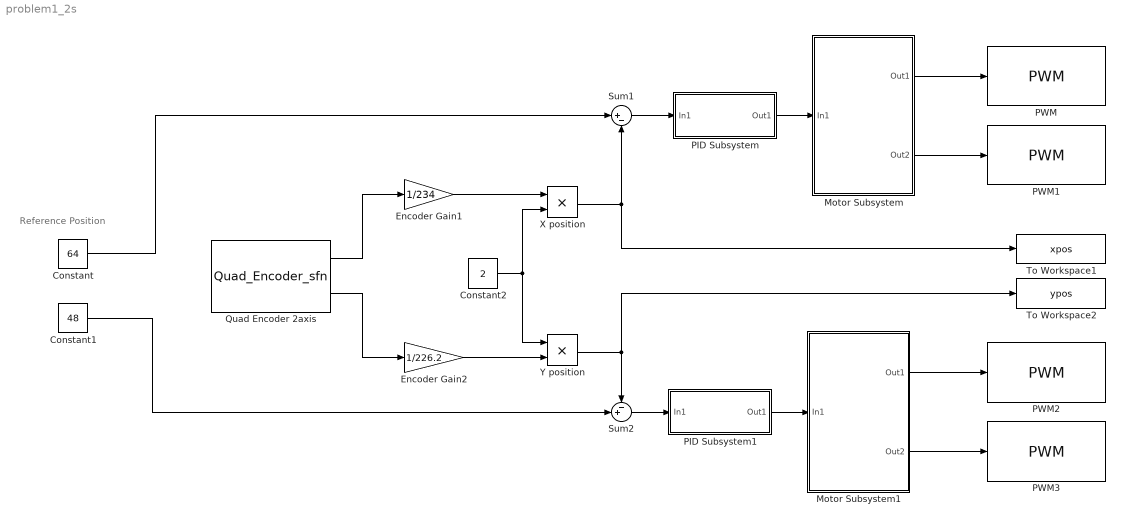
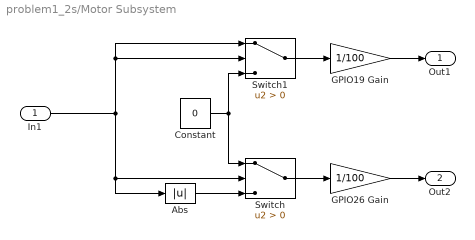
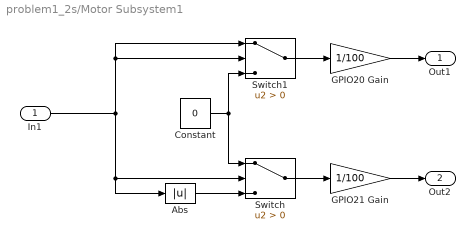
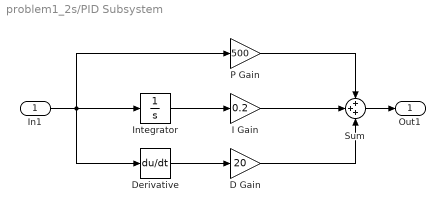
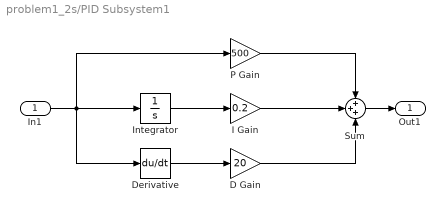
/*
 * problem1_2s.c
 *
 * Academic License - for use in teaching, academic research, and meeting
 * course requirements at degree granting institutions only.  Not for
 * government, commercial, or other organizational use.
 *
 * Code generation for model "problem1_2s".
 *
 * Model version              : 1.46
 * Simulink Coder version : 9.5 (R2021a) 14-Nov-2020
 * C source code generated on : Thu Dec 14 22:14:33 2023
 *
 * Target selection: ert.tlc
 * Note: GRT includes extra infrastructure and instrumentation for prototyping
 * Embedded hardware selection: ARM Compatible->ARM Cortex
 * Code generation objectives: Unspecified
 * Validation result: Not run
 */

#include "problem1_2s.h"
#include "problem1_2s_private.h"

/* Block signals (default storage) */
B_problem1_2s_T problem1_2s_B;

/* Continuous states */
X_problem1_2s_T problem1_2s_X;

/* Block states (default storage) */
DW_problem1_2s_T problem1_2s_DW;

/* Real-time model */
static RT_MODEL_problem1_2s_T problem1_2s_M_;
RT_MODEL_problem1_2s_T *const problem1_2s_M = &problem1_2s_M_;

/*
 * This function updates continuous states using the ODE3 fixed-step
 * solver algorithm
 */
static void rt_ertODEUpdateContinuousStates(RTWSolverInfo *si )
{
  /* Solver Matrices */
  static const real_T rt_ODE3_A[3] = {
    1.0/2.0, 3.0/4.0, 1.0
  };

  static const real_T rt_ODE3_B[3][3] = {
    { 1.0/2.0, 0.0, 0.0 },

    { 0.0, 3.0/4.0, 0.0 },

    { 2.0/9.0, 1.0/3.0, 4.0/9.0 }
  };

  time_T t = rtsiGetT(si);
  time_T tnew = rtsiGetSolverStopTime(si);
  time_T h = rtsiGetStepSize(si);
  real_T *x = rtsiGetContStates(si);
  ODE3_IntgData *id = (ODE3_IntgData *)rtsiGetSolverData(si);
  real_T *y = id->y;
  real_T *f0 = id->f[0];
  real_T *f1 = id->f[1];
  real_T *f2 = id->f[2];
  real_T hB[3];
  int_T i;
  int_T nXc = 2;
  rtsiSetSimTimeStep(si,MINOR_TIME_STEP);

  /* Save the state values at time t in y, we'll use x as ynew. */
  (void) memcpy(y, x,
                (uint_T)nXc*sizeof(real_T));

  /* Assumes that rtsiSetT and ModelOutputs are up-to-date */
  /* f0 = f(t,y) */
  rtsiSetdX(si, f0);
  problem1_2s_derivatives();

  /* f(:,2) = feval(odefile, t + hA(1), y + f*hB(:,1), args(:)(*)); */
  hB[0] = h * rt_ODE3_B[0][0];
  for (i = 0; i < nXc; i++) {
    x[i] = y[i] + (f0[i]*hB[0]);
  }

  rtsiSetT(si, t + h*rt_ODE3_A[0]);
  rtsiSetdX(si, f1);
  problem1_2s_step();
  problem1_2s_derivatives();

  /* f(:,3) = feval(odefile, t + hA(2), y + f*hB(:,2), args(:)(*)); */
  for (i = 0; i <= 1; i++) {
    hB[i] = h * rt_ODE3_B[1][i];
  }

  for (i = 0; i < nXc; i++) {
    x[i] = y[i] + (f0[i]*hB[0] + f1[i]*hB[1]);
  }

  rtsiSetT(si, t + h*rt_ODE3_A[1]);
  rtsiSetdX(si, f2);
  problem1_2s_step();
  problem1_2s_derivatives();

  /* tnew = t + hA(3);
     ynew = y + f*hB(:,3); */
  for (i = 0; i <= 2; i++) {
    hB[i] = h * rt_ODE3_B[2][i];
  }

  for (i = 0; i < nXc; i++) {
    x[i] = y[i] + (f0[i]*hB[0] + f1[i]*hB[1] + f2[i]*hB[2]);
  }

  rtsiSetT(si, tnew);
  rtsiSetSimTimeStep(si,MAJOR_TIME_STEP);
}

/* Model step function */
void problem1_2s_step(void)
{
  if (rtmIsMajorTimeStep(problem1_2s_M)) {
    /* set solver stop time */
    if (!(problem1_2s_M->Timing.clockTick0+1)) {
      rtsiSetSolverStopTime(&problem1_2s_M->solverInfo,
                            ((problem1_2s_M->Timing.clockTickH0 + 1) *
        problem1_2s_M->Timing.stepSize0 * 4294967296.0));
    } else {
      rtsiSetSolverStopTime(&problem1_2s_M->solverInfo,
                            ((problem1_2s_M->Timing.clockTick0 + 1) *
        problem1_2s_M->Timing.stepSize0 + problem1_2s_M->Timing.clockTickH0 *
        problem1_2s_M->Timing.stepSize0 * 4294967296.0));
    }
  }                                    /* end MajorTimeStep */

  /* Update absolute time of base rate at minor time step */
  if (rtmIsMinorTimeStep(problem1_2s_M)) {
    problem1_2s_M->Timing.t[0] = rtsiGetT(&problem1_2s_M->solverInfo);
  }

  {
    real_T rtb_Sum;
    real_T rtb_Sum_a;
    real_T rtb_Switch;
    real_T *lastU;

    /* S-Function (Quad_Encoder_sfn): '<Root>/Quad Encoder 2axis' */
    Quad_Encoder_sfn_Outputs_wrapper(&problem1_2s_B.QuadEncoder2axis_o1,
      &problem1_2s_B.QuadEncoder2axis_o2,
      &problem1_2s_DW.QuadEncoder2axis_DSTATE,
      &problem1_2s_P.QuadEncoder2axis_P1, 1, &problem1_2s_P.QuadEncoder2axis_P2,
      1, &problem1_2s_P.QuadEncoder2axis_P3, 1,
      &problem1_2s_P.QuadEncoder2axis_P4, 1, &problem1_2s_P.QuadEncoder2axis_P5,
      1, &problem1_2s_P.QuadEncoder2axis_P6, 1);

    /* Gain: '<Root>/Encoder Gain1' */
    problem1_2s_B.EncoderGain1 = (int64_T)problem1_2s_P.EncoderGain1_Gain *
      problem1_2s_B.QuadEncoder2axis_o1;

    /* Product: '<Root>/X position' incorporates:
     *  Constant: '<Root>/Constant2'
     *  Gain: '<Root>/Encoder Gain1'
     */
    problem1_2s_B.Xposition = (real_T)problem1_2s_B.EncoderGain1 *
      3.637978807091713E-12 * problem1_2s_P.Constant2_Value;

    /* Sum: '<Root>/Sum1' incorporates:
     *  Constant: '<Root>/Constant'
     */
    problem1_2s_B.Sum1 = problem1_2s_P.Constant_Value - problem1_2s_B.Xposition;

    /* Derivative: '<S3>/Derivative' incorporates:
     *  Derivative: '<S4>/Derivative'
     */
    rtb_Sum_a = problem1_2s_M->Timing.t[0];
    if ((problem1_2s_DW.TimeStampA >= rtb_Sum_a) && (problem1_2s_DW.TimeStampB >=
         rtb_Sum_a)) {
      rtb_Switch = 0.0;
    } else {
      rtb_Switch = problem1_2s_DW.TimeStampA;
      lastU = &problem1_2s_DW.LastUAtTimeA;
      if (problem1_2s_DW.TimeStampA < problem1_2s_DW.TimeStampB) {
        if (problem1_2s_DW.TimeStampB < rtb_Sum_a) {
          rtb_Switch = problem1_2s_DW.TimeStampB;
          lastU = &problem1_2s_DW.LastUAtTimeB;
        }
      } else if (problem1_2s_DW.TimeStampA >= rtb_Sum_a) {
        rtb_Switch = problem1_2s_DW.TimeStampB;
        lastU = &problem1_2s_DW.LastUAtTimeB;
      }

      rtb_Switch = (problem1_2s_B.Sum1 - *lastU) / (rtb_Sum_a - rtb_Switch);
    }

    /* End of Derivative: '<S3>/Derivative' */

    /* Sum: '<S3>/Sum' incorporates:
     *  Gain: '<S3>/D Gain'
     *  Gain: '<S3>/I Gain'
     *  Gain: '<S3>/P Gain'
     *  Integrator: '<S3>/Integrator'
     */
    rtb_Sum = (problem1_2s_P.PGain_Gain * problem1_2s_B.Sum1 +
               problem1_2s_P.IGain_Gain * problem1_2s_X.Integrator_CSTATE) +
      problem1_2s_P.DGain_Gain * rtb_Switch;

    /* Switch: '<S1>/Switch1' incorporates:
     *  Constant: '<S1>/Constant'
     */
    if (rtb_Sum > problem1_2s_P.Switch1_Threshold) {
      rtb_Switch = rtb_Sum;
    } else {
      rtb_Switch = problem1_2s_P.Constant_Value_d;
    }

    /* End of Switch: '<S1>/Switch1' */

    /* Gain: '<S1>/GPIO19 Gain' */
    rtb_Switch *= problem1_2s_P.GPIO19Gain_Gain;

    /* MATLABSystem: '<Root>/PWM' */
    if (!(rtb_Switch < 1.0)) {
      rtb_Switch = 1.0;
    }

    if (!(rtb_Switch > 0.0)) {
      rtb_Switch = 0.0;
    }

    EXT_PWMBlock_setDutyCycle(problem1_2s_DW.obj_g.PinNumber, rtb_Switch);

    /* End of MATLABSystem: '<Root>/PWM' */

    /* Switch: '<S1>/Switch' incorporates:
     *  Abs: '<S1>/Abs'
     *  Constant: '<S1>/Constant'
     */
    if (rtb_Sum > problem1_2s_P.Switch_Threshold) {
      rtb_Sum = problem1_2s_P.Constant_Value_d;
    } else {
      rtb_Sum = fabs(rtb_Sum);
    }

    /* End of Switch: '<S1>/Switch' */

    /* Gain: '<S1>/GPIO26 Gain' */
    rtb_Switch = problem1_2s_P.GPIO26Gain_Gain * rtb_Sum;

    /* MATLABSystem: '<Root>/PWM1' */
    if (!(rtb_Switch < 1.0)) {
      rtb_Switch = 1.0;
    }

    if (!(rtb_Switch > 0.0)) {
      rtb_Switch = 0.0;
    }

    EXT_PWMBlock_setDutyCycle(problem1_2s_DW.obj_e.PinNumber, rtb_Switch);

    /* End of MATLABSystem: '<Root>/PWM1' */
    if (rtmIsMajorTimeStep(problem1_2s_M)) {
    }

    /* Gain: '<Root>/Encoder Gain2' */
    problem1_2s_B.EncoderGain2 = (int64_T)problem1_2s_P.EncoderGain2_Gain *
      problem1_2s_B.QuadEncoder2axis_o2;

    /* Product: '<Root>/Y position' incorporates:
     *  Constant: '<Root>/Constant2'
     *  Gain: '<Root>/Encoder Gain2'
     */
    problem1_2s_B.Yposition = (real_T)problem1_2s_B.EncoderGain2 *
      3.637978807091713E-12 * problem1_2s_P.Constant2_Value;
    if (rtmIsMajorTimeStep(problem1_2s_M)) {
    }

    /* Sum: '<Root>/Sum2' incorporates:
     *  Constant: '<Root>/Constant1'
     */
    problem1_2s_B.Sum2 = problem1_2s_P.Constant1_Value - problem1_2s_B.Yposition;

    /* Derivative: '<S4>/Derivative' */
    if ((problem1_2s_DW.TimeStampA_n >= rtb_Sum_a) &&
        (problem1_2s_DW.TimeStampB_a >= rtb_Sum_a)) {
      rtb_Switch = 0.0;
    } else {
      rtb_Switch = problem1_2s_DW.TimeStampA_n;
      lastU = &problem1_2s_DW.LastUAtTimeA_k;
      if (problem1_2s_DW.TimeStampA_n < problem1_2s_DW.TimeStampB_a) {
        if (problem1_2s_DW.TimeStampB_a < rtb_Sum_a) {
          rtb_Switch = problem1_2s_DW.TimeStampB_a;
          lastU = &problem1_2s_DW.LastUAtTimeB_c;
        }
      } else if (problem1_2s_DW.TimeStampA_n >= rtb_Sum_a) {
        rtb_Switch = problem1_2s_DW.TimeStampB_a;
        lastU = &problem1_2s_DW.LastUAtTimeB_c;
      }

      rtb_Switch = (problem1_2s_B.Sum2 - *lastU) / (rtb_Sum_a - rtb_Switch);
    }

    /* Sum: '<S4>/Sum' incorporates:
     *  Gain: '<S4>/D Gain'
     *  Gain: '<S4>/I Gain'
     *  Gain: '<S4>/P Gain'
     *  Integrator: '<S4>/Integrator'
     */
    rtb_Sum_a = (problem1_2s_P.PGain_Gain_c * problem1_2s_B.Sum2 +
                 problem1_2s_P.IGain_Gain_a * problem1_2s_X.Integrator_CSTATE_b)
      + problem1_2s_P.DGain_Gain_c * rtb_Switch;

    /* Switch: '<S2>/Switch1' incorporates:
     *  Constant: '<S2>/Constant'
     */
    if (rtb_Sum_a > problem1_2s_P.Switch1_Threshold_c) {
      rtb_Switch = rtb_Sum_a;
    } else {
      rtb_Switch = problem1_2s_P.Constant_Value_e;
    }

    /* End of Switch: '<S2>/Switch1' */

    /* Gain: '<S2>/GPIO20 Gain' */
    rtb_Switch *= problem1_2s_P.GPIO20Gain_Gain;

    /* MATLABSystem: '<Root>/PWM2' */
    if (!(rtb_Switch < 1.0)) {
      rtb_Switch = 1.0;
    }

    if (!(rtb_Switch > 0.0)) {
      rtb_Switch = 0.0;
    }

    EXT_PWMBlock_setDutyCycle(problem1_2s_DW.obj_p.PinNumber, rtb_Switch);

    /* End of MATLABSystem: '<Root>/PWM2' */

    /* Switch: '<S2>/Switch' incorporates:
     *  Abs: '<S2>/Abs'
     *  Constant: '<S2>/Constant'
     */
    if (rtb_Sum_a > problem1_2s_P.Switch_Threshold_m) {
      rtb_Sum_a = problem1_2s_P.Constant_Value_e;
    } else {
      rtb_Sum_a = fabs(rtb_Sum_a);
    }

    /* End of Switch: '<S2>/Switch' */

    /* Gain: '<S2>/GPIO21 Gain' */
    rtb_Switch = problem1_2s_P.GPIO21Gain_Gain * rtb_Sum_a;

    /* MATLABSystem: '<Root>/PWM3' */
    if (!(rtb_Switch < 1.0)) {
      rtb_Switch = 1.0;
    }

    if (!(rtb_Switch > 0.0)) {
      rtb_Switch = 0.0;
    }

    EXT_PWMBlock_setDutyCycle(problem1_2s_DW.obj.PinNumber, rtb_Switch);

    /* End of MATLABSystem: '<Root>/PWM3' */
    if (rtmIsMajorTimeStep(problem1_2s_M)) {
    }
  }

  if (rtmIsMajorTimeStep(problem1_2s_M)) {
    real_T *lastU;

    /* Update for S-Function (Quad_Encoder_sfn): '<Root>/Quad Encoder 2axis' */

    /* S-Function "Quad_Encoder_sfn_wrapper" Block: <Root>/Quad Encoder 2axis */
    Quad_Encoder_sfn_Update_wrapper(&problem1_2s_B.QuadEncoder2axis_o1,
      &problem1_2s_B.QuadEncoder2axis_o2,
      &problem1_2s_DW.QuadEncoder2axis_DSTATE,
      &problem1_2s_P.QuadEncoder2axis_P1, 1, &problem1_2s_P.QuadEncoder2axis_P2,
      1, &problem1_2s_P.QuadEncoder2axis_P3, 1,
      &problem1_2s_P.QuadEncoder2axis_P4, 1, &problem1_2s_P.QuadEncoder2axis_P5,
      1, &problem1_2s_P.QuadEncoder2axis_P6, 1);

    /* Update for Derivative: '<S3>/Derivative' */
    if (problem1_2s_DW.TimeStampA == (rtInf)) {
      problem1_2s_DW.TimeStampA = problem1_2s_M->Timing.t[0];
      lastU = &problem1_2s_DW.LastUAtTimeA;
    } else if (problem1_2s_DW.TimeStampB == (rtInf)) {
      problem1_2s_DW.TimeStampB = problem1_2s_M->Timing.t[0];
      lastU = &problem1_2s_DW.LastUAtTimeB;
    } else if (problem1_2s_DW.TimeStampA < problem1_2s_DW.TimeStampB) {
      problem1_2s_DW.TimeStampA = problem1_2s_M->Timing.t[0];
      lastU = &problem1_2s_DW.LastUAtTimeA;
    } else {
      problem1_2s_DW.TimeStampB = problem1_2s_M->Timing.t[0];
      lastU = &problem1_2s_DW.LastUAtTimeB;
    }

    *lastU = problem1_2s_B.Sum1;

    /* End of Update for Derivative: '<S3>/Derivative' */

    /* Update for Derivative: '<S4>/Derivative' */
    if (problem1_2s_DW.TimeStampA_n == (rtInf)) {
      problem1_2s_DW.TimeStampA_n = problem1_2s_M->Timing.t[0];
      lastU = &problem1_2s_DW.LastUAtTimeA_k;
    } else if (problem1_2s_DW.TimeStampB_a == (rtInf)) {
      problem1_2s_DW.TimeStampB_a = problem1_2s_M->Timing.t[0];
      lastU = &problem1_2s_DW.LastUAtTimeB_c;
    } else if (problem1_2s_DW.TimeStampA_n < problem1_2s_DW.TimeStampB_a) {
      problem1_2s_DW.TimeStampA_n = problem1_2s_M->Timing.t[0];
      lastU = &problem1_2s_DW.LastUAtTimeA_k;
    } else {
      problem1_2s_DW.TimeStampB_a = problem1_2s_M->Timing.t[0];
      lastU = &problem1_2s_DW.LastUAtTimeB_c;
    }

    *lastU = problem1_2s_B.Sum2;

    /* End of Update for Derivative: '<S4>/Derivative' */

    /* External mode */
    rtExtModeUploadCheckTrigger(2);

    {                                  /* Sample time: [0.0s, 0.0s] */
      rtExtModeUpload(0, (real_T)problem1_2s_M->Timing.t[0]);
    }

    if (rtmIsMajorTimeStep(problem1_2s_M)) {/* Sample time: [0.001s, 0.0s] */
      rtExtModeUpload(1, (real_T)(((problem1_2s_M->Timing.clockTick1+
        problem1_2s_M->Timing.clockTickH1* 4294967296.0)) * 0.001));
    }
  }                                    /* end MajorTimeStep */

  if (rtmIsMajorTimeStep(problem1_2s_M)) {
    /* signal main to stop simulation */
    {                                  /* Sample time: [0.0s, 0.0s] */
      if ((rtmGetTFinal(problem1_2s_M)!=-1) &&
          !((rtmGetTFinal(problem1_2s_M)-(((problem1_2s_M->Timing.clockTick1+
               problem1_2s_M->Timing.clockTickH1* 4294967296.0)) * 0.001)) >
            (((problem1_2s_M->Timing.clockTick1+
               problem1_2s_M->Timing.clockTickH1* 4294967296.0)) * 0.001) *
            (DBL_EPSILON))) {
        rtmSetErrorStatus(problem1_2s_M, "Simulation finished");
      }

      if (rtmGetStopRequested(problem1_2s_M)) {
        rtmSetErrorStatus(problem1_2s_M, "Simulation finished");
      }
    }

    rt_ertODEUpdateContinuousStates(&problem1_2s_M->solverInfo);

    /* Update absolute time for base rate */
    /* The "clockTick0" counts the number of times the code of this task has
     * been executed. The absolute time is the multiplication of "clockTick0"
     * and "Timing.stepSize0". Size of "clockTick0" ensures timer will not
     * overflow during the application lifespan selected.
     * Timer of this task consists of two 32 bit unsigned integers.
     * The two integers represent the low bits Timing.clockTick0 and the high bits
     * Timing.clockTickH0. When the low bit overflows to 0, the high bits increment.
     */
    if (!(++problem1_2s_M->Timing.clockTick0)) {
      ++problem1_2s_M->Timing.clockTickH0;
    }

    problem1_2s_M->Timing.t[0] = rtsiGetSolverStopTime
      (&problem1_2s_M->solverInfo);

    {
      /* Update absolute timer for sample time: [0.001s, 0.0s] */
      /* The "clockTick1" counts the number of times the code of this task has
       * been executed. The resolution of this integer timer is 0.001, which is the step size
       * of the task. Size of "clockTick1" ensures timer will not overflow during the
       * application lifespan selected.
       * Timer of this task consists of two 32 bit unsigned integers.
       * The two integers represent the low bits Timing.clockTick1 and the high bits
       * Timing.clockTickH1. When the low bit overflows to 0, the high bits increment.
       */
      problem1_2s_M->Timing.clockTick1++;
      if (!problem1_2s_M->Timing.clockTick1) {
        problem1_2s_M->Timing.clockTickH1++;
      }
    }
  }                                    /* end MajorTimeStep */
}
